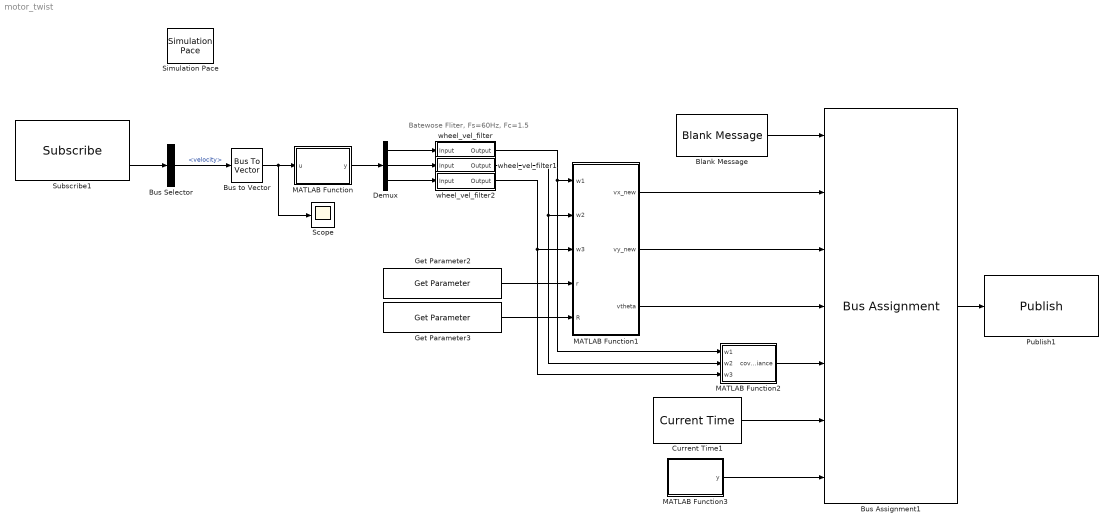
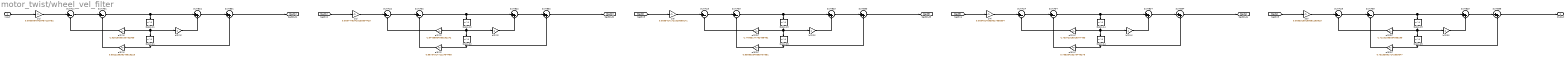
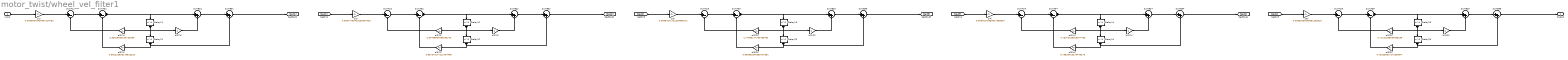
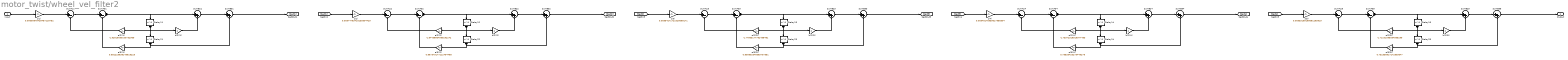
== matlab function motor_twist/MATLAB Function1 ==
function [vx_new, vy_new, vtheta] = fcn(w1, w2, w3, r, R)
    cvt = [0,       -sqrt(3)/3, sqrt(3)/3;
           2/3,     -1/3,       -1/3;
           1/(3*r), 1/(3*r),    1/(3*r)];
    v = R*cvt*[w1;w2;w3];
    vx = v(1);
    vy = v(2);
    vtheta = v(3);
    theta_ = pi/3;
    vx_new = cos(theta_)*vx - sin(theta_)*vy;
    vy_new = sin(theta_)*vx + cos(theta_)*vy;
end

== matlab function motor_twist/MATLAB Function ==
function y = saperate(u)

    y = u(1:3);

end

== matlab function motor_twist/MATLAB Function2 ==
function covariance = fcn(w1, w2, w3)
    if (abs(w1)<0.1 && abs(w2)<0.1 && abs(w3)<0.1)
        cx = 0.01;
        cy = 0.01;
        cz = 0.01;
    else
        cx = 0.1;
        cy = 0.1;
        cz = 0.1;
    end
    covariance = reshape(diag([0,0,0,cx,cy,cz]),[36,1]);
end

== matlab function motor_twist/MATLAB Function3 ==
function y  = fcn()
    a = char("base_link");
    z = uint8(a);
    y = zeros(1, 128, 'uint8');
    len = length(z);
    y(1:len) = z; 
    y = zeros(1, 128, 'uint8');

/*
 * motor_twist.cpp
 *
 * Academic License - for use in teaching, academic research, and meeting
 * course requirements at degree granting institutions only.  Not for
 * government, commercial, or other organizational use.
 *
 * Code generation for model "motor_twist".
 *
 * Model version              : 1.33
 * Simulink Coder version : 23.2 (R2023b) 01-Aug-2023
 * C++ source code generated on : Sat Apr 13 12:33:41 2024
 *
 * Target selection: ert.tlc
 * Note: GRT includes extra infrastructure and instrumentation for prototyping
 * Embedded hardware selection: Intel->x86-64 (Linux 64)
 * Code generation objectives: Unspecified
 * Validation result: Not run
 */

#include "motor_twist.h"
#include "motor_twist_types.h"
#include "rtwtypes.h"
#include <math.h>
#include <string.h>
#include <emmintrin.h>
#include "rmw/qos_profiles.h"
#include "rmw/types.h"
#include <stddef.h>

void motor_twist::motor_twist_SystemCore_setup_j(ros_slros2_internal_block_Sub_T
  *obj)
{
  rmw_qos_durability_policy_t durability;
  rmw_qos_history_policy_t history;
  rmw_qos_profile_t qos_profile;
  rmw_qos_reliability_policy_t reliability;
  char_T b_zeroDelimTopic[14];
  static const char_T tmp[13] = { '/', 'm', 'o', 't', 'o', 'r', '/', 's', 't',
    'a', 't', 'e', 's' };

  obj->isInitialized = 1;
  qos_profile = rmw_qos_profile_default;
  history = RMW_QOS_POLICY_HISTORY_KEEP_LAST;
  reliability = RMW_QOS_POLICY_RELIABILITY_RELIABLE;
  durability = RMW_QOS_POLICY_DURABILITY_VOLATILE;
  SET_QOS_VALUES(qos_profile, history, (size_t)1.0, durability, reliability);
  for (int32_T i = 0; i < 13; i++) {
    b_zeroDelimTopic[i] = tmp[i];
  }

  b_zeroDelimTopic[13] = '\x00';
  Sub_motor_twist_406.createSubscriber(&b_zeroDelimTopic[0], qos_profile);
  obj->isSetupComplete = true;
}

void motor_twist::motor_twist_SystemCore_setup(ros_slros2_internal_block_Pub_T
  *obj)
{
  rmw_qos_durability_policy_t durability;
  rmw_qos_history_policy_t history;
  rmw_qos_profile_t qos_profile;
  rmw_qos_reliability_policy_t reliability;
  static const char_T tmp[21] = { '/', 'm', 'o', 't', 'o', 'r', '/', 'b', 'a',
    's', 'e', 'l', 'i', 'n', 'k', '/', 't', 'w', 'i', 's', 't' };

  obj->isInitialized = 1;
  qos_profile = rmw_qos_profile_default;
  history = RMW_QOS_POLICY_HISTORY_KEEP_LAST;
  reliability = RMW_QOS_POLICY_RELIABILITY_RELIABLE;
  durability = RMW_QOS_POLICY_DURABILITY_VOLATILE;
  SET_QOS_VALUES(qos_profile, history, (size_t)1.0, durability, reliability);
  for (int32_T i = 0; i < 21; i++) {
    motor_twist_B.b_zeroDelimTopic[i] = tmp[i];
  }

  motor_twist_B.b_zeroDelimTopic[21] = '\x00';
  Pub_motor_twist_411.createPublisher(&motor_twist_B.b_zeroDelimTopic[0],
    qos_profile);
  obj->isSetupComplete = true;
}

/* Model step function */
void motor_twist::step()
{
  __m128d tmp;
  __m128d tmp_0;
  __m128d tmp_1;
  real_T rtb_SumB35_p;
  int32_T i;
  boolean_T b_varargout_1;

  /* MATLABSystem: '<S7>/SourceBlock' */
  b_varargout_1 = Sub_motor_twist_406.getLatestMessage
    (&motor_twist_B.b_varargout_2);

  /* Outputs for Enabled SubSystem: '<S7>/Enabled Subsystem' incorporates:
   *  EnablePort: '<S11>/Enable'
   */
  if (b_varargout_1) {
    /* SignalConversion generated from: '<S11>/In1' */
    motor_twist_B.In1 = motor_twist_B.b_varargout_2;
  }

  /* End of MATLABSystem: '<S7>/SourceBlock' */
  /* End of Outputs for SubSystem: '<S7>/Enabled Subsystem' */

  /* Sum: '<S8>/SumA31' incorporates:
   *  Delay: '<S8>/Delay11'
   *  Delay: '<S8>/Delay21'
   *  Gain: '<S8>/a(2)(1)'
   *  Gain: '<S8>/a(3)(1)'
   *  Gain: '<S8>/s(1)'
   *  MATLAB Function: '<Root>/MATLAB Function'
   *  Sum: '<S8>/SumA21'
   */
  motor_twist_B.SumA31 = (motor_twist_P.s1_Gain * motor_twist_B.In1.velocity[0]
    - motor_twist_P.a21_Gain * motor_twist_DW.Delay11_DSTATE) -
    motor_twist_P.a31_Gain * motor_twist_DW.Delay21_DSTATE;

  /* Sum: '<S8>/SumA32' incorporates:
   *  Delay: '<S8>/Delay11'
   *  Delay: '<S8>/Delay12'
   *  Delay: '<S8>/Delay21'
   *  Delay: '<S8>/Delay22'
   *  Gain: '<S8>/a(2)(2)'
   *  Gain: '<S8>/a(3)(2)'
   *  Gain: '<S8>/b(2)(1)'
   *  Gain: '<S8>/s(2)'
   *  Sum: '<S8>/SumA22'
   *  Sum: '<S8>/SumB21'
   *  Sum: '<S8>/SumB31'
   */
  motor_twist_B.SumA32 = (((motor_twist_P.b21_Gain *
    motor_twist_DW.Delay11_DSTATE + motor_twist_B.SumA31) +
    motor_twist_DW.Delay21_DSTATE) * motor_twist_P.s2_Gain -
    motor_twist_P.a22_Gain * motor_twist_DW.Delay12_DSTATE) -
    motor_twist_P.a32_Gain * motor_twist_DW.Delay22_DSTATE;

  /* Sum: '<S8>/SumA33' incorporates:
   *  Delay: '<S8>/Delay12'
   *  Delay: '<S8>/Delay13'
   *  Delay: '<S8>/Delay22'
   *  Delay: '<S8>/Delay23'
   *  Gain: '<S8>/a(2)(3)'
   *  Gain: '<S8>/a(3)(3)'
   *  Gain: '<S8>/b(2)(2)'
   *  Gain: '<S8>/s(3)'
   *  Sum: '<S8>/SumA23'
   *  Sum: '<S8>/SumB22'
   *  Sum: '<S8>/SumB32'
   */
  motor_twist_B.SumA33 = (((motor_twist_P.b22_Gain *
    motor_twist_DW.Delay12_DSTATE + motor_twist_B.SumA32) +
    motor_twist_DW.Delay22_DSTATE) * motor_twist_P.s3_Gain -
    motor_twist_P.a23_Gain * motor_twist_DW.Delay13_DSTATE) -
    motor_twist_P.a33_Gain * motor_twist_DW.Delay23_DSTATE;

  /* Sum: '<S8>/SumA34' incorporates:
   *  Delay: '<S8>/Delay13'
   *  Delay: '<S8>/Delay14'
   *  Delay: '<S8>/Delay23'
   *  Delay: '<S8>/Delay24'
   *  Gain: '<S8>/a(2)(4)'
   *  Gain: '<S8>/a(3)(4)'
   *  Gain: '<S8>/b(2)(3)'
   *  Gain: '<S8>/s(4)'
   *  Sum: '<S8>/SumA24'
   *  Sum: '<S8>/SumB23'
   *  Sum: '<S8>/SumB33'
   */
  motor_twist_B.SumA34 = (((motor_twist_P.b23_Gain *
    motor_twist_DW.Delay13_DSTATE + motor_twist_B.SumA33) +
    motor_twist_DW.Delay23_DSTATE) * motor_twist_P.s4_Gain -
    motor_twist_P.a24_Gain * motor_twist_DW.Delay14_DSTATE) -
    motor_twist_P.a34_Gain * motor_twist_DW.Delay24_DSTATE;

  /* Sum: '<S8>/SumA35' incorporates:
   *  Delay: '<S8>/Delay14'
   *  Delay: '<S8>/Delay15'
   *  Delay: '<S8>/Delay24'
   *  Delay: '<S8>/Delay25'
   *  Gain: '<S8>/a(2)(5)'
   *  Gain: '<S8>/a(3)(5)'
   *  Gain: '<S8>/b(2)(4)'
   *  Gain: '<S8>/s(5)'
   *  Sum: '<S8>/SumA25'
   *  Sum: '<S8>/SumB24'
   *  Sum: '<S8>/SumB34'
   */
  motor_twist_B.SumA35 = (((motor_twist_P.b24_Gain *
    motor_twist_DW.Delay14_DSTATE + motor_twist_B.SumA34) +
    motor_twist_DW.Delay24_DSTATE) * motor_twist_P.s5_Gain -
    motor_twist_P.a25_Gain * motor_twist_DW.Delay15_DSTATE) -
    motor_twist_P.a35_Gain * motor_twist_DW.Delay25_DSTATE;

  /* Sum: '<S8>/SumB35' incorporates:
   *  Delay: '<S8>/Delay15'
   *  Delay: '<S8>/Delay25'
   *  Gain: '<S8>/b(2)(5)'
   *  Sum: '<S8>/SumB25'
   */
  motor_twist_B.SumB35 = (motor_twist_P.b25_Gain * motor_twist_DW.Delay15_DSTATE
    + motor_twist_B.SumA35) + motor_twist_DW.Delay25_DSTATE;

  /* Sum: '<S9>/SumA31' incorporates:
   *  Delay: '<S9>/Delay11'
   *  Delay: '<S9>/Delay21'
   *  Gain: '<S9>/a(2)(1)'
   *  Gain: '<S9>/a(3)(1)'
   *  Gain: '<S9>/s(1)'
   *  MATLAB Function: '<Root>/MATLAB Function'
   *  Sum: '<S9>/SumA21'
   */
  motor_twist_B.SumA31_b = (motor_twist_P.s1_Gain_f *
    motor_twist_B.In1.velocity[1] - motor_twist_P.a21_Gain_m *
    motor_twist_DW.Delay11_DSTATE_h) - motor_twist_P.a31_Gain_n *
    motor_twist_DW.Delay21_DSTATE_k;

  /* Sum: '<S9>/SumA32' incorporates:
   *  Delay: '<S9>/Delay11'
   *  Delay: '<S9>/Delay12'
   *  Delay: '<S9>/Delay21'
   *  Delay: '<S9>/Delay22'
   *  Gain: '<S9>/a(2)(2)'
   *  Gain: '<S9>/a(3)(2)'
   *  Gain: '<S9>/b(2)(1)'
   *  Gain: '<S9>/s(2)'
   *  Sum: '<S9>/SumA22'
   *  Sum: '<S9>/SumB21'
   *  Sum: '<S9>/SumB31'
   */
  motor_twist_B.SumA32_g = (((motor_twist_P.b21_Gain_n *
    motor_twist_DW.Delay11_DSTATE_h + motor_twist_B.SumA31_b) +
    motor_twist_DW.Delay21_DSTATE_k) * motor_twist_P.s2_Gain_f -
    motor_twist_P.a22_Gain_c * motor_twist_DW.Delay12_DSTATE_k) -
    motor_twist_P.a32_Gain_c * motor_twist_DW.Delay22_DSTATE_m;

  /* Sum: '<S9>/SumA33' incorporates:
   *  Delay: '<S9>/Delay12'
   *  Delay: '<S9>/Delay13'
   *  Delay: '<S9>/Delay22'
   *  Delay: '<S9>/Delay23'
   *  Gain: '<S9>/a(2)(3)'
   *  Gain: '<S9>/a(3)(3)'
   *  Gain: '<S9>/b(2)(2)'
   *  Gain: '<S9>/s(3)'
   *  Sum: '<S9>/SumA23'
   *  Sum: '<S9>/SumB22'
   *  Sum: '<S9>/SumB32'
   */
  motor_twist_B.SumA33_n = (((motor_twist_P.b22_Gain_l *
    motor_twist_DW.Delay12_DSTATE_k + motor_twist_B.SumA32_g) +
    motor_twist_DW.Delay22_DSTATE_m) * motor_twist_P.s3_Gain_n -
    motor_twist_P.a23_Gain_j * motor_twist_DW.Delay13_DSTATE_p) -
    motor_twist_P.a33_Gain_f * motor_twist_DW.Delay23_DSTATE_m;

  /* Sum: '<S9>/SumA34' incorporates:
   *  Delay: '<S9>/Delay13'
   *  Delay: '<S9>/Delay14'
   *  Delay: '<S9>/Delay23'
   *  Delay: '<S9>/Delay24'
   *  Gain: '<S9>/a(2)(4)'
   *  Gain: '<S9>/a(3)(4)'
   *  Gain: '<S9>/b(2)(3)'
   *  Gain: '<S9>/s(4)'
   *  Sum: '<S9>/SumA24'
   *  Sum: '<S9>/SumB23'
   *  Sum: '<S9>/SumB33'
   */
  motor_twist_B.SumA34_g = (((motor_twist_P.b23_Gain_d *
    motor_twist_DW.Delay13_DSTATE_p + motor_twist_B.SumA33_n) +
    motor_twist_DW.Delay23_DSTATE_m) * motor_twist_P.s4_Gain_f -
    motor_twist_P.a24_Gain_c * motor_twist_DW.Delay14_DSTATE_n) -
    motor_twist_P.a34_Gain_g * motor_twist_DW.Delay24_DSTATE_o;

  /* Sum: '<S9>/SumA35' incorporates:
   *  Delay: '<S9>/Delay14'
   *  Delay: '<S9>/Delay15'
   *  Delay: '<S9>/Delay24'
   *  Delay: '<S9>/Delay25'
   *  Gain: '<S9>/a(2)(5)'
   *  Gain: '<S9>/a(3)(5)'
   *  Gain: '<S9>/b(2)(4)'
   *  Gain: '<S9>/s(5)'
   *  Sum: '<S9>/SumA25'
   *  Sum: '<S9>/SumB24'
   *  Sum: '<S9>/SumB34'
   */
  motor_twist_B.SumA35_g = (((motor_twist_P.b24_Gain_c *
    motor_twist_DW.Delay14_DSTATE_n + motor_twist_B.SumA34_g) +
    motor_twist_DW.Delay24_DSTATE_o) * motor_twist_P.s5_Gain_i -
    motor_twist_P.a25_Gain_h * motor_twist_DW.Delay15_DSTATE_k) -
    motor_twist_P.a35_Gain_n * motor_twist_DW.Delay25_DSTATE_f;

  /* Sum: '<S9>/SumB35' incorporates:
   *  Delay: '<S9>/Delay15'
   *  Delay: '<S9>/Delay25'
   *  Gain: '<S9>/b(2)(5)'
   *  Sum: '<S9>/SumB25'
   */
  motor_twist_B.SumB35_o = (motor_twist_P.b25_Gain_d *
    motor_twist_DW.Delay15_DSTATE_k + motor_twist_B.SumA35_g) +
    motor_twist_DW.Delay25_DSTATE_f;

  /* Sum: '<S10>/SumA31' incorporates:
   *  Delay: '<S10>/Delay11'
   *  Delay: '<S10>/Delay21'
   *  Gain: '<S10>/a(2)(1)'
   *  Gain: '<S10>/a(3)(1)'
   *  Gain: '<S10>/s(1)'
   *  MATLAB Function: '<Root>/MATLAB Function'
   *  Sum: '<S10>/SumA21'
   */
  motor_twist_B.SumA31_i = (motor_twist_P.s1_Gain_l *
    motor_twist_B.In1.velocity[2] - motor_twist_P.a21_Gain_o *
    motor_twist_DW.Delay11_DSTATE_i) - motor_twist_P.a31_Gain_o *
    motor_twist_DW.Delay21_DSTATE_m;

  /* Sum: '<S10>/SumA32' incorporates:
   *  Delay: '<S10>/Delay11'
   *  Delay: '<S10>/Delay12'
   *  Delay: '<S10>/Delay21'
   *  Delay: '<S10>/Delay22'
   *  Gain: '<S10>/a(2)(2)'
   *  Gain: '<S10>/a(3)(2)'
   *  Gain: '<S10>/b(2)(1)'
   *  Gain: '<S10>/s(2)'
   *  Sum: '<S10>/SumA22'
   *  Sum: '<S10>/SumB21'
   *  Sum: '<S10>/SumB31'
   */
  motor_twist_B.SumA32_e = (((motor_twist_P.b21_Gain_f *
    motor_twist_DW.Delay11_DSTATE_i + motor_twist_B.SumA31_i) +
    motor_twist_DW.Delay21_DSTATE_m) * motor_twist_P.s2_Gain_d -
    motor_twist_P.a22_Gain_b * motor_twist_DW.Delay12_DSTATE_l) -
    motor_twist_P.a32_Gain_p * motor_twist_DW.Delay22_DSTATE_p;

  /* Sum: '<S10>/SumA33' incorporates:
   *  Delay: '<S10>/Delay12'
   *  Delay: '<S10>/Delay13'
   *  Delay: '<S10>/Delay22'
   *  Delay: '<S10>/Delay23'
   *  Gain: '<S10>/a(2)(3)'
   *  Gain: '<S10>/a(3)(3)'
   *  Gain: '<S10>/b(2)(2)'
   *  Gain: '<S10>/s(3)'
   *  Sum: '<S10>/SumA23'
   *  Sum: '<S10>/SumB22'
   *  Sum: '<S10>/SumB32'
   */
  motor_twist_B.SumA33_h = (((motor_twist_P.b22_Gain_f *
    motor_twist_DW.Delay12_DSTATE_l + motor_twist_B.SumA32_e) +
    motor_twist_DW.Delay22_DSTATE_p) * motor_twist_P.s3_Gain_nz -
    motor_twist_P.a23_Gain_l * motor_twist_DW.Delay13_DSTATE_i) -
    motor_twist_P.a33_Gain_m * motor_twist_DW.Delay23_DSTATE_b;

  /* Sum: '<S10>/SumA34' incorporates:
   *  Delay: '<S10>/Delay13'
   *  Delay: '<S10>/Delay14'
   *  Delay: '<S10>/Delay23'
   *  Delay: '<S10>/Delay24'
   *  Gain: '<S10>/a(2)(4)'
   *  Gain: '<S10>/a(3)(4)'
   *  Gain: '<S10>/b(2)(3)'
   *  Gain: '<S10>/s(4)'
   *  Sum: '<S10>/SumA24'
   *  Sum: '<S10>/SumB23'
   *  Sum: '<S10>/SumB33'
   */
  motor_twist_B.SumA34_i = (((motor_twist_P.b23_Gain_l *
    motor_twist_DW.Delay13_DSTATE_i + motor_twist_B.SumA33_h) +
    motor_twist_DW.Delay23_DSTATE_b) * motor_twist_P.s4_Gain_g -
    motor_twist_P.a24_Gain_f * motor_twist_DW.Delay14_DSTATE_p) -
    motor_twist_P.a34_Gain_f * motor_twist_DW.Delay24_DSTATE_b;

  /* Sum: '<S10>/SumA35' incorporates:
   *  Delay: '<S10>/Delay14'
   *  Delay: '<S10>/Delay15'
   *  Delay: '<S10>/Delay24'
   *  Delay: '<S10>/Delay25'
   *  Gain: '<S10>/a(2)(5)'
   *  Gain: '<S10>/a(3)(5)'
   *  Gain: '<S10>/b(2)(4)'
   *  Gain: '<S10>/s(5)'
   *  Sum: '<S10>/SumA25'
   *  Sum: '<S10>/SumB24'
   *  Sum: '<S10>/SumB34'
   */
  motor_twist_B.SumA35_k = (((motor_twist_P.b24_Gain_e *
    motor_twist_DW.Delay14_DSTATE_p + motor_twist_B.SumA34_i) +
    motor_twist_DW.Delay24_DSTATE_b) * motor_twist_P.s5_Gain_k -
    motor_twist_P.a25_Gain_h3 * motor_twist_DW.Delay15_DSTATE_o) -
    motor_twist_P.a35_Gain_b * motor_twist_DW.Delay25_DSTATE_e;

  /* Sum: '<S10>/SumB35' incorporates:
   *  Delay: '<S10>/Delay15'
   *  Delay: '<S10>/Delay25'
   *  Gain: '<S10>/b(2)(5)'
   *  Sum: '<S10>/SumB25'
   */
  rtb_SumB35_p = (motor_twist_P.b25_Gain_b * motor_twist_DW.Delay15_DSTATE_o +
                  motor_twist_B.SumA35_k) + motor_twist_DW.Delay25_DSTATE_e;

  /* MATLAB Function: '<Root>/MATLAB Function2' */
  if ((fabs(motor_twist_B.SumB35) < 0.1) && (fabs(motor_twist_B.SumB35_o) < 0.1)
      && (fabs(rtb_SumB35_p) < 0.1)) {
    motor_twist_B.v[3] = 0.01;
    motor_twist_B.v[4] = 0.01;
    motor_twist_B.v[5] = 0.01;
  } else {
    motor_twist_B.v[3] = 0.1;
    motor_twist_B.v[4] = 0.1;
    motor_twist_B.v[5] = 0.1;
  }

  motor_twist_B.v[0] = 0.0;
  motor_twist_B.v[1] = 0.0;
  motor_twist_B.v[2] = 0.0;
  memset(&motor_twist_B.covariance[0], 0, 36U * sizeof(real_T));
  for (i = 0; i < 6; i++) {
    motor_twist_B.covariance[i + 6 * i] = motor_twist_B.v[i];
  }

  /* MATLABSystem: '<Root>/Get Parameter2' */
  ParamGet_motor_twist_407.getParameter(&motor_twist_B.b_value_c);

  /* MATLABSystem: '<Root>/Get Parameter3' */
  ParamGet_motor_twist_408.getParameter(&motor_twist_B.b_value_k);

  /* MATLAB Function: '<Root>/MATLAB Function1' incorporates:
   *  MATLABSystem: '<Root>/Get Parameter2'
   *  MATLABSystem: '<Root>/Get Parameter3'
   */
  motor_twist_B.b_value[0] = motor_twist_B.b_value_k * 0.0;
  motor_twist_B.b_value[1] = motor_twist_B.b_value_k * 0.66666666666666663;
  motor_twist_B.b_value[3] = motor_twist_B.b_value_k * -0.57735026918962573;
  motor_twist_B.b_value[4] = motor_twist_B.b_value_k * -0.33333333333333331;
  motor_twist_B.b_value[6] = motor_twist_B.b_value_k * 0.57735026918962573;
  motor_twist_B.b_value[7] = motor_twist_B.b_value_k * -0.33333333333333331;
  motor_twist_B.b_value_c = 1.0 / (3.0 * motor_twist_B.b_value_c) *
    motor_twist_B.b_value_k;
  motor_twist_B.b_value[2] = motor_twist_B.b_value_c;
  motor_twist_B.b_value[5] = motor_twist_B.b_value_c;
  motor_twist_B.b_value[8] = motor_twist_B.b_value_c;
  for (i = 0; i <= 0; i += 2) {
    /* MATLAB Function: '<Root>/MATLAB Function1' */
    tmp = _mm_loadu_pd(&motor_twist_B.b_value[i + 3]);
    tmp_0 = _mm_loadu_pd(&motor_twist_B.b_value[i]);
    tmp_1 = _mm_loadu_pd(&motor_twist_B.b_value[i + 6]);
    _mm_storeu_pd(&motor_twist_B.v_m[i], _mm_add_pd(_mm_add_pd(_mm_mul_pd(tmp,
      _mm_set1_pd(motor_twist_B.SumB35_o)), _mm_mul_pd(tmp_0, _mm_set1_pd
      (motor_twist_B.SumB35))), _mm_mul_pd(tmp_1, _mm_set1_pd(rtb_SumB35_p))));
  }

  /* MATLAB Function: '<Root>/MATLAB Function1' */
  for (i = 2; i < 3; i++) {
    motor_twist_B.v_m[i] = (motor_twist_B.b_value[i + 3] *
      motor_twist_B.SumB35_o + motor_twist_B.b_value[i] * motor_twist_B.SumB35)
      + motor_twist_B.b_value[i + 6] * rtb_SumB35_p;
  }

  /* MATLABSystem: '<Root>/Current Time1' */
  currentROS2TimeBus(&motor_twist_B.rtb_CurrentTime1_c);

  /* BusAssignment: '<Root>/Bus Assignment1' incorporates:
   *  Constant: '<S1>/Constant'
   *  MATLAB Function: '<Root>/MATLAB Function1'
   *  MATLAB Function: '<Root>/MATLAB Function2'
   *  MATLAB Function: '<Root>/MATLAB Function3'
   *  MATLABSystem: '<Root>/Current Time1'
   */
  motor_twist_B.BusAssignment1 = motor_twist_P.Constant_Value_f;
  motor_twist_B.BusAssignment1.twist.twist.linear.x = 0.50000000000000011 *
    motor_twist_B.v_m[0] - 0.8660254037844386 * motor_twist_B.v_m[1];
  motor_twist_B.BusAssignment1.twist.twist.linear.y = 0.8660254037844386 *
    motor_twist_B.v_m[0] + 0.50000000000000011 * motor_twist_B.v_m[1];
  motor_twist_B.BusAssignment1.twist.twist.angular.z = motor_twist_B.v_m[2];
  memcpy(&motor_twist_B.BusAssignment1.twist.covariance[0],
         &motor_twist_B.covariance[0], 36U * sizeof(real_T));
  motor_twist_B.BusAssignment1.header.stamp = motor_twist_B.rtb_CurrentTime1_c;
  memset(&motor_twist_B.BusAssignment1.header.frame_id[0], 0, sizeof(uint8_T) <<
         7U);

  /* MATLABSystem: '<S6>/SinkBlock' */
  Pub_motor_twist_411.publish(&motor_twist_B.BusAssignment1);

  /* S-Function (saeroclockpacer): '<Root>/Simulation Pace' */
  /*
   * The Clock Pacer generates no code, it is only active in
   * interpreted simulation.
   */

  /* Update for Delay: '<S8>/Delay25' incorporates:
   *  Delay: '<S8>/Delay15'
   */
  motor_twist_DW.Delay25_DSTATE = motor_twist_DW.Delay15_DSTATE;

  /* Update for Delay: '<S8>/Delay24' incorporates:
   *  Delay: '<S8>/Delay14'
   */
  motor_twist_DW.Delay24_DSTATE = motor_twist_DW.Delay14_DSTATE;

  /* Update for Delay: '<S8>/Delay23' incorporates:
   *  Delay: '<S8>/Delay13'
   */
  motor_twist_DW.Delay23_DSTATE = motor_twist_DW.Delay13_DSTATE;

  /* Update for Delay: '<S8>/Delay22' incorporates:
   *  Delay: '<S8>/Delay12'
   */
  motor_twist_DW.Delay22_DSTATE = motor_twist_DW.Delay12_DSTATE;

  /* Update for Delay: '<S8>/Delay21' incorporates:
   *  Delay: '<S8>/Delay11'
   */
  motor_twist_DW.Delay21_DSTATE = motor_twist_DW.Delay11_DSTATE;

  /* Update for Delay: '<S8>/Delay11' */
  motor_twist_DW.Delay11_DSTATE = motor_twist_B.SumA31;

  /* Update for Delay: '<S8>/Delay12' */
  motor_twist_DW.Delay12_DSTATE = motor_twist_B.SumA32;

  /* Update for Delay: '<S8>/Delay13' */
  motor_twist_DW.Delay13_DSTATE = motor_twist_B.SumA33;

  /* Update for Delay: '<S8>/Delay14' */
  motor_twist_DW.Delay14_DSTATE = motor_twist_B.SumA34;

  /* Update for Delay: '<S8>/Delay15' */
  motor_twist_DW.Delay15_DSTATE = motor_twist_B.SumA35;

  /* Update for Delay: '<S9>/Delay25' incorporates:
   *  Delay: '<S9>/Delay15'
   */
  motor_twist_DW.Delay25_DSTATE_f = motor_twist_DW.Delay15_DSTATE_k;

  /* Update for Delay: '<S9>/Delay24' incorporates:
   *  Delay: '<S9>/Delay14'
   */
  motor_twist_DW.Delay24_DSTATE_o = motor_twist_DW.Delay14_DSTATE_n;

  /* Update for Delay: '<S9>/Delay23' incorporates:
   *  Delay: '<S9>/Delay13'
   */
  motor_twist_DW.Delay23_DSTATE_m = motor_twist_DW.Delay13_DSTATE_p;

  /* Update for Delay: '<S9>/Delay22' incorporates:
   *  Delay: '<S9>/Delay12'
   */
  motor_twist_DW.Delay22_DSTATE_m = motor_twist_DW.Delay12_DSTATE_k;

  /* Update for Delay: '<S9>/Delay21' incorporates:
   *  Delay: '<S9>/Delay11'
   */
  motor_twist_DW.Delay21_DSTATE_k = motor_twist_DW.Delay11_DSTATE_h;

  /* Update for Delay: '<S9>/Delay11' */
  motor_twist_DW.Delay11_DSTATE_h = motor_twist_B.SumA31_b;

  /* Update for Delay: '<S9>/Delay12' */
  motor_twist_DW.Delay12_DSTATE_k = motor_twist_B.SumA32_g;

  /* Update for Delay: '<S9>/Delay13' */
  motor_twist_DW.Delay13_DSTATE_p = motor_twist_B.SumA33_n;

  /* Update for Delay: '<S9>/Delay14' */
  motor_twist_DW.Delay14_DSTATE_n = motor_twist_B.SumA34_g;

  /* Update for Delay: '<S9>/Delay15' */
  motor_twist_DW.Delay15_DSTATE_k = motor_twist_B.SumA35_g;

  /* Update for Delay: '<S10>/Delay25' incorporates:
   *  Delay: '<S10>/Delay15'
   */
  motor_twist_DW.Delay25_DSTATE_e = motor_twist_DW.Delay15_DSTATE_o;

  /* Update for Delay: '<S10>/Delay24' incorporates:
   *  Delay: '<S10>/Delay14'
   */
  motor_twist_DW.Delay24_DSTATE_b = motor_twist_DW.Delay14_DSTATE_p;

  /* Update for Delay: '<S10>/Delay23' incorporates:
   *  Delay: '<S10>/Delay13'
   */
  motor_twist_DW.Delay23_DSTATE_b = motor_twist_DW.Delay13_DSTATE_i;

  /* Update for Delay: '<S10>/Delay22' incorporates:
   *  Delay: '<S10>/Delay12'
   */
  motor_twist_DW.Delay22_DSTATE_p = motor_twist_DW.Delay12_DSTATE_l;

  /* Update for Delay: '<S10>/Delay21' incorporates:
   *  Delay: '<S10>/Delay11'
   */
  motor_twist_DW.Delay21_DSTATE_m = motor_twist_DW.Delay11_DSTATE_i;

  /* Update for Delay: '<S10>/Delay11' */
  motor_twist_DW.Delay11_DSTATE_i = motor_twist_B.SumA31_i;

  /* Update for Delay: '<S10>/Delay12' */
  motor_twist_DW.Delay12_DSTATE_l = motor_twist_B.SumA32_e;

  /* Update for Delay: '<S10>/Delay13' */
  motor_twist_DW.Delay13_DSTATE_i = motor_twist_B.SumA33_h;

  /* Update for Delay: '<S10>/Delay14' */
  motor_twist_DW.Delay14_DSTATE_p = motor_twist_B.SumA34_i;

  /* Update for Delay: '<S10>/Delay15' */
  motor_twist_DW.Delay15_DSTATE_o = motor_twist_B.SumA35_k;
}
